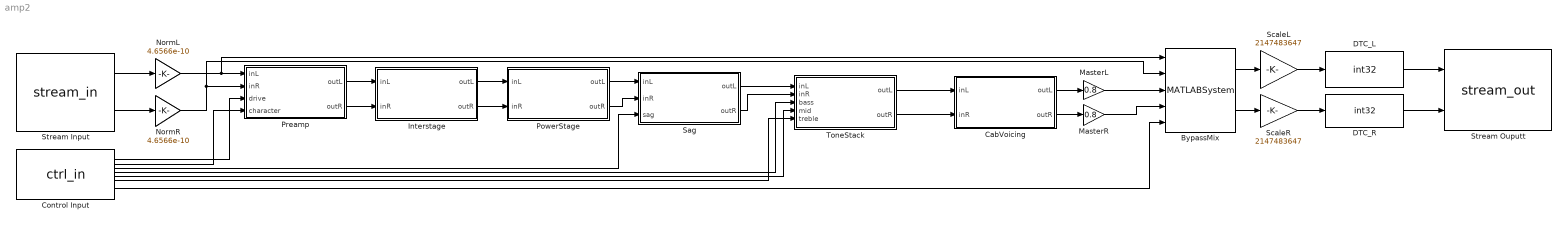
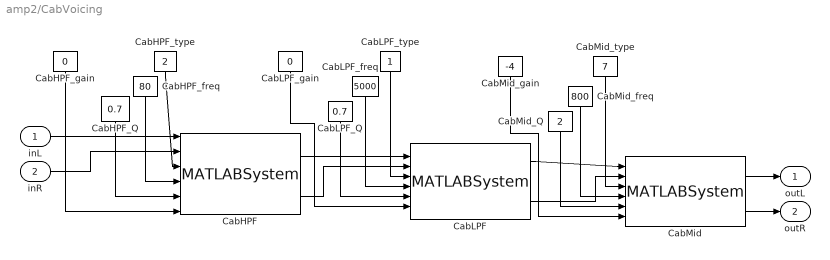
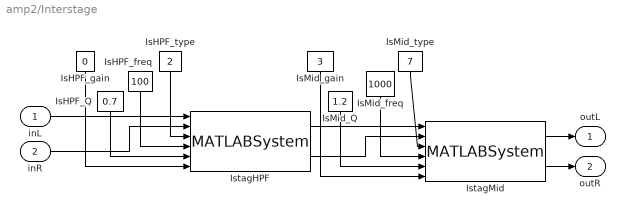
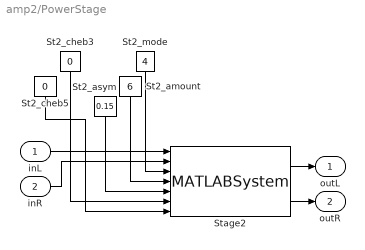
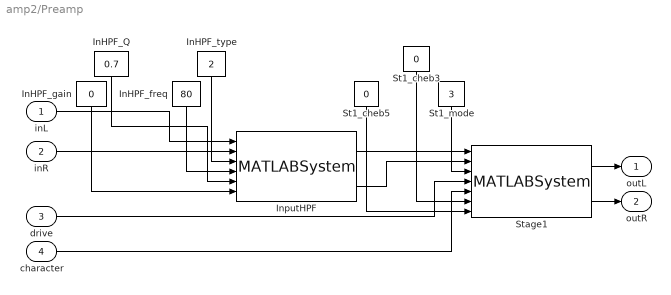
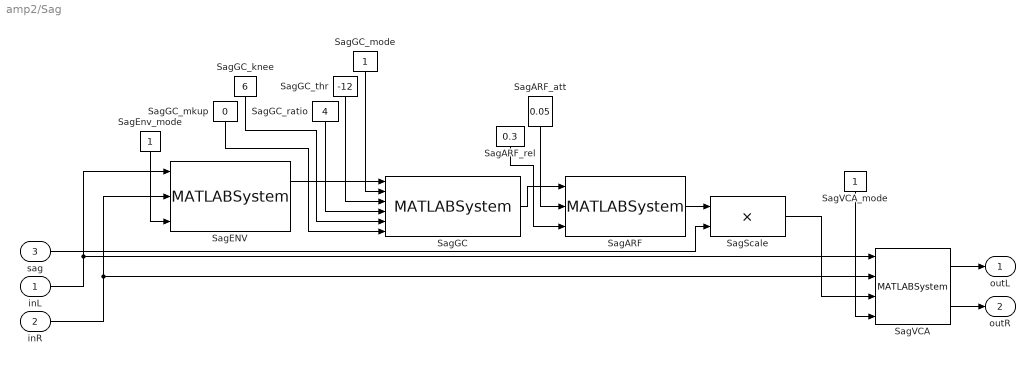
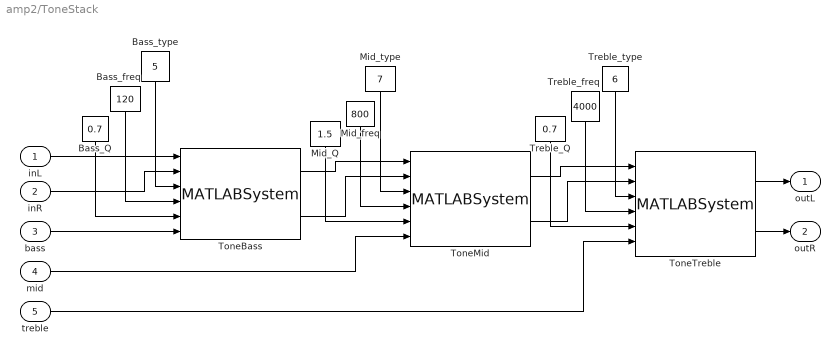
/*
 * Academic License - for use in teaching, academic research, and meeting
 * course requirements at degree granting institutions only.  Not for
 * government, commercial, or other organizational use.
 *
 * File: amp2.c
 *
 * Code generated for Simulink model 'amp2'.
 *
 * Model version                  : 1.15
 * Simulink Coder version         : 25.2 (R2025b) 28-Jul-2025
 * C/C++ source code generated on : Sat Apr 11 12:20:53 2026
 *
 * Target selection: ert.tlc
 * Embedded hardware selection: ARM Compatible->ARM Cortex-A
 * Code generation objectives: Unspecified
 * Validation result: Not run
 */

#include "amp2.h"
#include "rtwtypes.h"
#include "amp2_types.h"
#include "amp2_private.h"
#include "rt_nonfinite.h"
#include <string.h>
#include <math.h>

/* Block signals (default storage) */
B_amp2_T amp2_B;

/* Block states (default storage) */
DW_amp2_T amp2_DW;

/* Real-time model */
static RT_MODEL_amp2_T amp2_M_;
RT_MODEL_amp2_T *const amp2_M = &amp2_M_;

/* Forward declaration for local functions */
static void amp2_filter(real_T b[3], real_T a[3], const real_T x[128], const
  real_T zi[2], real_T y[128], real_T zf[2]);

/* Forward declaration for local functions */
static boolean_T amp2_isequal(const real_T varargin_1[257], const real_T
  varargin_2[257]);
static real_T amp2_lut_ws_sys_shapeOne(const lut_ws_sys_amp2_T *obj, real_T x,
  uint8_T md, real_T drive, real_T b, real_T cheb3, real_T cheb5, const real_T
  xGrid[257], const real_T yGrid[257]);
static void amp2_filter_o(const real_T b[15], const real_T x[256], const real_T
  zi[14], real_T y[256], real_T zf[14]);
static void amp2_filter_o0(const real_T b[15], const real_T x[512], const real_T
  zi[14], real_T y[512], real_T zf[14]);
static void amp_lut_ws_sys_processChannelOS(const lut_ws_sys_amp2_T *obj, const
  real_T x[128], uint8_T os, uint8_T md, real_T drive, real_T b, real_T cheb3,
  real_T cheb5, const real_T xGrid[257], const real_T yGrid[257], real_T zUp1[14],
  real_T zUp2[14], real_T zDn1[14], real_T zDn2[14], real_T y[128]);

/* Forward declaration for local functions */
static boolean_T amp2_isequal_n(const real_T varargin_1[257], const real_T
  varargin_2[257]);
real_T rt_roundd_snf(real_T u)
{
  real_T y;
  if (fabs(u) < 4.503599627370496E+15) {
    if (u >= 0.5) {
      y = floor(u + 0.5);
    } else if (u > -0.5) {
      y = u * 0.0;
    } else {
      y = ceil(u - 0.5);
    }
  } else {
    y = u;
  }

  return y;
}

static void amp2_filter(real_T b[3], real_T a[3], const real_T x[128], const
  real_T zi[2], real_T y[128], real_T zf[2])
{
  int32_T b_j;
  int32_T e_k;
  int32_T naxpy;

  /* Start for MATLABSystem: '<S1>/CabHPF' */
  if ((!rtIsInf(a[0])) && (!rtIsNaN(a[0])) && (!(a[0] == 0.0)) && (a[0] != 1.0))
  {
    b[0] /= a[0];
    b[1] /= a[0];
    b[2] /= a[0];
    a[1] /= a[0];
    a[2] /= a[0];
    a[0] = 1.0;
  }

  zf[0] = 0.0;
  y[0] = zi[0];
  zf[1] = 0.0;
  y[1] = zi[1];
  memset(&y[2], 0, 126U * sizeof(real_T));
  for (e_k = 0; e_k < 128; e_k++) {
    real_T as;
    int32_T y_tmp;

    /* Start for MATLABSystem: '<S1>/CabHPF' */
    if (128 - e_k <= 3) {
      naxpy = 128 - e_k;
    } else {
      naxpy = 3;
    }

    for (b_j = 0; b_j < naxpy; b_j++) {
      y_tmp = e_k + b_j;

      /* Start for MATLABSystem: '<S1>/CabHPF' */
      y[y_tmp] += x[e_k] * b[b_j];
    }

    /* Start for MATLABSystem: '<S1>/CabHPF' */
    if (127 - e_k <= 2) {
      naxpy = 127 - e_k;
    } else {
      naxpy = 2;
    }

    as = -y[e_k];
    for (b_j = 0; b_j < naxpy; b_j++) {
      y_tmp = (b_j + e_k) + 1;
      y[y_tmp] += a[b_j + 1] * as;
    }
  }

  for (e_k = 0; e_k < 2; e_k++) {
    for (naxpy = 0; naxpy <= e_k; naxpy++) {
      /* Start for MATLABSystem: '<S1>/CabHPF' */
      zf[naxpy] += b[(naxpy - e_k) + 2] * x[e_k + 126];
    }
  }

  for (e_k = 0; e_k < 2; e_k++) {
    for (naxpy = 0; naxpy <= e_k; naxpy++) {
      /* Start for MATLABSystem: '<S1>/CabHPF' */
      zf[naxpy] += a[(naxpy - e_k) + 2] * -y[e_k + 126];
    }
  }
}

real_T rt_powd_snf(real_T u0, real_T u1)
{
  real_T y;
  if (rtIsNaN(u0) || rtIsNaN(u1)) {
    y = (rtNaN);
  } else {
    real_T tmp;
    real_T tmp_0;
    tmp = fabs(u0);
    tmp_0 = fabs(u1);
    if (rtIsInf(u1)) {
      if (tmp == 1.0) {
        y = 1.0;
      } else if (tmp > 1.0) {
        if (u1 > 0.0) {
          y = (rtInf);
        } else {
          y = 0.0;
        }
      } else if (u1 > 0.0) {
        y = 0.0;
      } else {
        y = (rtInf);
      }
    } else if (tmp_0 == 0.0) {
      y = 1.0;
    } else if (tmp_0 == 1.0) {
      if (u1 > 0.0) {
        y = u0;
      } else {
        y = 1.0 / u0;
      }
    } else if (u1 == 2.0) {
      y = u0 * u0;
    } else if ((u1 == 0.5) && (u0 >= 0.0)) {
      y = sqrt(u0);
    } else if ((u0 < 0.0) && (u1 > floor(u1))) {
      y = (rtNaN);
    } else {
      y = pow(u0, u1);
    }
  }

  return y;
}

/* System initialize for atomic system: */
void amp2_CabHPF_Init(DW_CabHPF_amp2_T *localDW)
{
  /* Start for MATLABSystem: '<S1>/CabHPF' */
  localDW->objisempty = true;
  localDW->obj.isInitialized = 1;

  /*  arranca en bypass */
  localDW->obj.b[0] = 1.0;
  localDW->obj.a[0] = 1.0;
  localDW->obj.b[1] = 0.0;
  localDW->obj.a[1] = 0.0;
  localDW->obj.b[2] = 0.0;
  localDW->obj.a[2] = 0.0;

  /*  fuerza recálculo en el primer frame */
  localDW->obj.lastType = MAX_uint8_T;
  localDW->obj.lastFreq = (rtNaN);
  localDW->obj.lastQ = (rtNaN);
  localDW->obj.lastGain = (rtNaN);

  /* InitializeConditions for MATLABSystem: '<S1>/CabHPF' */
  localDW->obj.zL[0] = 0.0;
  localDW->obj.zR[0] = 0.0;
  localDW->obj.zL[1] = 0.0;
  localDW->obj.zR[1] = 0.0;
}

/* Output and update for atomic system: */
void amp2_CabHPF(const real_T rtu_0[128], const real_T rtu_1[128], real_T rtu_2,
                 real_T rtu_3, real_T rtu_4, real_T rtu_5, B_CabHPF_amp2_T
                 *localB, DW_CabHPF_amp2_T *localDW)
{
  real_T rtu_0_0[128];
  real_T tmp_0[3];
  real_T tmp_1[3];
  real_T b[2];
  real_T A;
  real_T G;
  real_T Q;
  real_T a0;
  real_T a0_tmp;
  real_T a0_tmp_0;
  real_T f;
  real_T p;
  real_T q;
  real_T sqrtA;
  real_T wc;
  int32_T t;
  uint8_T tmp;

  /* MATLABSystem: '<S1>/CabHPF' */
  G = rt_roundd_snf(rtu_2);
  if (G < 256.0) {
    if (G >= 0.0) {
      tmp = (uint8_T)G;
    } else {
      tmp = 0U;
    }
  } else {
    tmp = MAX_uint8_T;
  }

  /*  acepta double y castea */
  if ((tmp != localDW->obj.lastType) || (rtu_3 != localDW->obj.lastFreq) ||
      (rtu_4 != localDW->obj.lastQ) || (rtu_5 != localDW->obj.lastGain)) {
    f = rtu_3;
    Q = rtu_4;
    G = rtu_5;
    t = tmp;
    if (rtIsInf(rtu_3) || rtIsNaN(rtu_3)) {
      f = 1000.0;
    }

    if (rtIsInf(rtu_4) || rtIsNaN(rtu_4)) {
      Q = 0.707;
    }

    if (rtIsInf(rtu_5) || rtIsNaN(rtu_5)) {
      G = 0.0;
    }

    /*  límites prácticos */
    if (f < 0.1) {
      f = 0.1;
    }

    if (f > 23952.0) {
      f = 23952.0;
    }

    if (Q < 0.001) {
      Q = 0.001;
    }

    wc = f / 48000.0 * 6.2831853071795862;
    if (tmp < 1) {
      t = 1;
    } else if (tmp > 7) {
      t = 7;
    }

    localDW->obj.b[0] = 1.0;
    localDW->obj.a[0] = 1.0;
    localDW->obj.b[1] = 0.0;
    localDW->obj.a[1] = 0.0;
    localDW->obj.b[2] = 0.0;
    localDW->obj.a[2] = 0.0;
    switch ((uint8_T)t) {
     case 1U:
      /*  lowpass */
      /* Cálculo de los coefifientes de un Filtro Paso-Bajo de 2º orden */
      /* Parámetos de entrada:  */
      /* wo = frecuencia de corte a -3dB (en radianes) */
      /* Parametros de salida: */
      /* Coeficientes [b,a] de un filtro IIR de segundo orden */
      p = cos(wc);
      f = 1.4142135623730951 * sin(wc);

      /* Normalización de coeficientes */
      /* fvtool(b,a); */
      G = (1.0 - p) / (f + 2.0);
      localDW->obj.b[0] = G;
      localDW->obj.b[1] = (1.0 - p) * 2.0 / (f + 2.0);
      localDW->obj.b[2] = G;
      localDW->obj.a[0] = (f + 2.0) / (f + 2.0);
      localDW->obj.a[1] = -4.0 * p / (f + 2.0);
      localDW->obj.a[2] = (2.0 - f) / (f + 2.0);
      break;

     case 2U:
      /*  highpass */
      /* Cálculo de los coefifientes de un Filtro Paso-Alto de 2º orden */
      /* Parámetos de entrada:  */
      /* wo = frecuencia de corte a -3dB (en radianes) */
      /* Parametros de salida: */
      /* Coeficientes [b,a] de un filtro IIR de segundo orden */
      p = cos(wc);

      /*  Coeficientes del ecualizador */
      f = 1.4142135623730951 * sin(wc);

      /* Normalización de coeficientes */
      /*  */
      /* fvtool(b,a); */
      G = (p + 1.0) / (f + 2.0);
      localDW->obj.b[0] = G;
      localDW->obj.b[1] = (p + 1.0) * -2.0 / (f + 2.0);
      localDW->obj.b[2] = G;
      localDW->obj.a[0] = (f + 2.0) / (f + 2.0);
      localDW->obj.a[1] = -4.0 * p / (f + 2.0);
      localDW->obj.a[2] = (2.0 - f) / (f + 2.0);
      break;

     case 3U:
      /*  bandpass (0 dB peak) */
      /* Cálculo de los coefifientes de un Filtro Paso-Banda 2º orden */
      /* Parámetos de entrada:  */
      /* wo = frecuencia central (en radianes) */
      /* Q = factor de calidad */
      /*  */
      /* Parametros de salida: */
      /* Coeficientes [b,a] de un filtro IIR de segundo orden */
      f = sin(wc) / Q;

      /*  <-- Q aquí */
      /*  Coeficientes del ecualizador */
      /* Normalización de coeficientes */
      /* fvtool(b,a); */
      localDW->obj.b[0] = f / (f + 2.0);
      localDW->obj.b[1] = 0.0 / (f + 2.0);
      localDW->obj.b[2] = -f / (f + 2.0);
      localDW->obj.a[0] = (f + 2.0) / (f + 2.0);
      localDW->obj.a[1] = -4.0 * cos(wc) / (f + 2.0);
      localDW->obj.a[2] = (2.0 - f) / (f + 2.0);
      break;

     case 4U:
      /*  bandreject / notch */
      /* Cálculo de los coefifientes de un Filtro Paso-Banda 2º orden */
      /* Parámetos de entrada:  */
      /* wo = frecuencia central (en radianes) */
      /* Q = factor de calidad */
      /*  */
      /* Parametros de salida: */
      /* Coeficientes [b,a] de un filtro IIR de segundo orden */
      /*  Coeficientes del ecualizador */
      f = sin(wc) / Q;

      /* Normalización de coeficientes */
      /* fvtool(b,a); */
      G = 2.0 / (f + 2.0);
      localDW->obj.b[0] = G;
      wc = -4.0 * cos(wc) / (f + 2.0);
      localDW->obj.b[1] = wc;
      localDW->obj.b[2] = G;
      localDW->obj.a[0] = (f + 2.0) / (f + 2.0);
      localDW->obj.a[1] = wc;
      localDW->obj.a[2] = (2.0 - f) / (f + 2.0);
      break;

     case 5U:
      /*  lowshelf (RBJ, usando Q como S) */
      /* Cálculo de los coefifientes de un Filtro Paso-Banda 2º orden */
      /* Parámetos de entrada:  */
      /* wo = frecuencia central (en radianes) */
      /* Q = factor de calidad */
      /*  */
      /* Parametros de salida: */
      /* Coeficientes [b,a] de un filtro IIR de segundo orden */
      A = rt_powd_snf(10.0, G / 40.0);
      sqrtA = sqrt(A);
      p = cos(wc);
      q = sin(wc);

      /*  Coeficientes del ecualizador */
      f = 1.0 / A;
      a0_tmp = (1.0 - f) * p + (f + 1.0);
      a0_tmp_0 = 1.4142135623730951 * q / sqrtA;
      a0 = a0_tmp + a0_tmp_0;

      /* Normalización de coeficientes */
      /* fvtool(b,a); */
      G = (1.0 - A) * p + (A + 1.0);
      wc = 1.4142135623730951 * sqrtA * q;
      localDW->obj.b[0] = (G + wc) / a0;
      localDW->obj.b[1] = ((A + 1.0) * p + (1.0 - A)) * -2.0 / a0;
      localDW->obj.b[2] = (G - wc) / a0;
      localDW->obj.a[0] = a0 / a0;
      localDW->obj.a[1] = ((f + 1.0) * p + (1.0 - f)) * -2.0 / a0;
      localDW->obj.a[2] = (a0_tmp - a0_tmp_0) / a0;
      break;

     case 6U:
      /*  highshelf (RBJ, usando Q como S) */
      /* Cálculo de los coefifientes de un Filtro Paso-Banda 2º orden */
      /* Parámetos de entrada:  */
      /* wo = frecuencia central (en radianes) */
      /* Q = factor de calidad */
      /*  */
      /* Parametros de salida: */
      /* Coeficientes [b,a] de un filtro IIR de segundo orden */
      A = rt_powd_snf(10.0, G / 40.0);
      sqrtA = sqrt(A);
      p = cos(wc);
      q = sin(wc);

      /*  Coeficientes del ecualizador */
      f = (1.0 - A) * p + (A + 1.0);
      a0_tmp = 1.4142135623730951 * sqrtA * q;
      a0 = f + a0_tmp;
      a0_tmp_0 = A * A;

      /* Normalización de coeficientes */
      /* fvtool(b,a); */
      G = 1.0 / A;
      wc = (1.0 - G) * p + (G + 1.0);
      sqrtA = 1.4142135623730951 * q / sqrtA;
      localDW->obj.b[0] = (wc + sqrtA) * a0_tmp_0 / a0;
      localDW->obj.b[1] = ((G + 1.0) * p + (1.0 - G)) * -2.0 * a0_tmp_0 / a0;
      localDW->obj.b[2] = (wc - sqrtA) * a0_tmp_0 / a0;
      localDW->obj.a[0] = a0 / a0;
      localDW->obj.a[1] = ((A + 1.0) * p + (1.0 - A)) * -2.0 / a0;
      localDW->obj.a[2] = (f - a0_tmp) / a0;
      break;

     case 7U:
      /*  peaking / centershelf */
      /* Cálculo de los coefifientes de un Filtro Paso-Banda 2º orden */
      /* Parámetos de entrada:  */
      /* wo = frecuencia central (en radianes) */
      /* Q = factor de calidad */
      /*  */
      /* Parametros de salida: */
      /* Coeficientes [b,a] de un filtro IIR de segundo orden */
      A = rt_powd_snf(10.0, G / 40.0);
      G = sin(wc) / (2.0 * Q);

      /*  Coeficientes del ecualizador */
      f = G / A;

      /* Normalización de coeficientes */
      /* fvtool(b,a); */
      G *= A;
      localDW->obj.b[0] = (G + 1.0) / (f + 1.0);
      wc = -2.0 * cos(wc) / (f + 1.0);
      localDW->obj.b[1] = wc;
      localDW->obj.b[2] = (1.0 - G) / (f + 1.0);
      localDW->obj.a[0] = (f + 1.0) / (f + 1.0);
      localDW->obj.a[1] = wc;
      localDW->obj.a[2] = (1.0 - f) / (f + 1.0);
      break;
    }

    localDW->obj.lastType = tmp;
    localDW->obj.lastFreq = rtu_3;
    localDW->obj.lastQ = Q;
    localDW->obj.lastGain = rtu_5;
  }

  /*  bp es logical */
  for (t = 0; t < 3; t++) {
    tmp_0[t] = localDW->obj.b[t];
  }

  for (t = 0; t < 3; t++) {
    tmp_1[t] = localDW->obj.a[t];
  }

  /* Start for MATLABSystem: '<S1>/CabHPF' */
  memcpy(&rtu_0_0[0], &rtu_0[0], sizeof(real_T) << 7);

  /* MATLABSystem: '<S1>/CabHPF' */
  amp2_filter(tmp_0, tmp_1, rtu_0_0, localDW->obj.zL, localB->CabHPF_o1, b);
  localDW->obj.zL[0] = b[0];
  localDW->obj.zL[1] = b[1];
  for (t = 0; t < 3; t++) {
    tmp_0[t] = localDW->obj.b[t];
  }

  for (t = 0; t < 3; t++) {
    tmp_1[t] = localDW->obj.a[t];
  }

  /* Start for MATLABSystem: '<S1>/CabHPF' */
  memcpy(&rtu_0_0[0], &rtu_1[0], sizeof(real_T) << 7);

  /* MATLABSystem: '<S1>/CabHPF' */
  amp2_filter(tmp_0, tmp_1, rtu_0_0, localDW->obj.zR, localB->CabHPF_o2, b);
  localDW->obj.zR[0] = b[0];
  localDW->zL[0] = localDW->obj.zL[0];
  localDW->zR[0] = b[0];
  localDW->obj.zR[1] = b[1];
  localDW->zL[1] = localDW->obj.zL[1];
  localDW->zR[1] = b[1];
}

/* Termination for atomic system: */
void amp2_CabHPF_Term(DW_CabHPF_amp2_T *localDW)
{
  /* Terminate for MATLABSystem: '<S1>/CabHPF' */
  localDW->zL[0] = localDW->obj.zL[0];
  localDW->zR[0] = localDW->obj.zR[0];
  localDW->zL[1] = localDW->obj.zL[1];
  localDW->zR[1] = localDW->obj.zR[1];
}

static boolean_T amp2_isequal(const real_T varargin_1[257], const real_T
  varargin_2[257])
{
  int32_T b_k;
  boolean_T exitg1;
  boolean_T p;
  boolean_T p_0;
  p = false;

  /* Start for MATLABSystem: '<S3>/Stage2' */
  p_0 = true;
  b_k = 0;
  exitg1 = false;
  while ((!exitg1) && (b_k < 257)) {
    if (!(varargin_1[b_k] == varargin_2[b_k])) {
      p_0 = false;
      exitg1 = true;
    } else {
      b_k++;
    }
  }

  if (p_0) {
    p = true;
  }

  return p;
}

static real_T amp2_lut_ws_sys_shapeOne(const lut_ws_sys_amp2_T *obj, real_T x,
  uint8_T md, real_T drive, real_T b, real_T cheb3, real_T cheb5, const real_T
  xGrid[257], const real_T yGrid[257])
{
  real_T y;

  /*  SHAPER (una muestra) */
  /*  pre: drive + bias */
  y = drive * x + b;

  /* Start for MATLABSystem: '<S3>/Stage2' */
  if (rtIsInf(y) || rtIsNaN(y)) {
    y = 0.0;
  }

  /*  limitar a rango razonable antes de funciones no lineales */
  /* u = clamp(obj, u, -1.0, 1.0); */
  if (md == 1) {
    /*  ---- Hard clip simétrico ---- */
    if (y < -1.0) {
      y = -1.0;
    } else if (y > 1.0) {
      y = 1.0;
    }
  } else if (md == 2) {
    /*  ---- Soft clip polinómico (tipo 3er orden, continuo) ---- */
    if (y < -2.0) {
      y = -2.0;
    } else if (y > 2.0) {
      y = 2.0;
    }

    /*  y = u - u^3/3 para |u|<=1  (suave, sin discontinuidad) */
    /*  (si quieres más agresivo, usa otro polinomio) */
    y -= y * y * y / 3.0;
  } else if (md == 3) {
    /*  ---- Tanh (soft saturación) ---- */
    /*  Normalizamos ligeramente para que tanh(1) no sea demasiado bajo */
    y = tanh(2.0 * y) / 0.9640275800758169;
  } else if (md == 4) {
    /*  ---- Asym clip (bias ya aplicado) + hard clip ---- */
    /*  Asimetría sale de b; aquí solo clippeamos. */
    /* y = clamp(obj, u, -1.0, 1.0); */
    /*  recorta antes en negativo */
    if (y < -0.6) {
      y = -0.6;
    } else if (y > 1.0) {
      y = 1.0;
    }

    /*  renormaliza */
  } else if (md == 5) {
    real_T den;
    real_T u2;

    /*  ---- Chebyshev controlado (T1 + a3*T3 + a5*T5) ---- */
    /*  Para x en [-1,1]: */
    /*  T1=u */
    /*  T3=4u^3-3u */
    /*  T5=16u^5-20u^3+5u */
    if (y < -1.0) {
      y = -1.0;
    } else if (y > 1.0) {
      y = 1.0;
    }

    u2 = y * y;
    den = u2 * y;
    y = ((den * u2 * 16.0 - 20.0 * den) + 5.0 * y) * cheb5 + ((4.0 * den - 3.0 *
      y) * cheb3 + y);

    /*  re-limit (Chebyshev puede exceder) */
    if (y < -1.0) {
      y = -1.0;
    } else if (y > 1.0) {
      y = 1.0;
    }

    /*  ---- User LUT: y = interp(u; XUser,YUser) ---- */
    /*  Interpolación lineal LUT (saturación) */
  } else if (y <= xGrid[0]) {
    y = yGrid[0];
  } else if (y >= xGrid[256]) {
    y = yGrid[256];
  } else {
    real_T den;
    real_T u2;
    int32_T b_i;
    int32_T k;
    boolean_T exitg1;
    k = 1;
    b_i = 0;
    exitg1 = false;
    while ((!exitg1) && (b_i < 256)) {
      if (y < xGrid[b_i + 1]) {
        k = b_i + 1;
        exitg1 = true;
      } else {
        b_i++;
      }
    }

    u2 = xGrid[k - 1];
    den = xGrid[k] - u2;
    if ((den <= obj->Eps) || (rtIsInf(den) || rtIsNaN(den))) {
      y = yGrid[k - 1];
    } else {
      real_T y_tmp;
      y_tmp = yGrid[k - 1];
      y = (y - u2) / den * (yGrid[k] - y_tmp) + y_tmp;
    }
  }

  /*  post: opcionalmente quitar bias DC introducido (simple, estático) */
  /*  En audio real, quitar DC es mejor con HPF muy suave; aquí hacemos corrección estática: */
  /* y = y - b; */
  if (rtIsInf(y) || rtIsNaN(y)) {
    y = 0.0;
  }

  /*  limitar salida final */
  if (y < -1.0) {
    y = -1.0;
  } else if (y > 1.0) {
    y = 1.0;
  }

  /* End of Start for MATLABSystem: '<S3>/Stage2' */
  return y;
}

static void amp2_filter_o(const real_T b[15], const real_T x[256], const real_T
  zi[14], real_T y[256], real_T zf[14])
{
  int32_T b_j;
  int32_T b_k;
  for (b_k = 0; b_k < 14; b_k++) {
    zf[b_k] = 0.0;
    y[b_k] = zi[b_k];
  }

  memset(&y[14], 0, 242U * sizeof(real_T));
  for (b_k = 0; b_k < 15; b_k++) {
    for (b_j = b_k + 1; b_j < 257; b_j++) {
      y[b_j - 1] += x[(b_j - b_k) - 1] * b[b_k];
    }
  }

  for (b_k = 0; b_k < 14; b_k++) {
    for (b_j = 0; b_j <= b_k; b_j++) {
      /* Start for MATLABSystem: '<S3>/Stage2' */
      zf[b_j] += b[(b_j - b_k) + 14] * x[b_k + 242];
    }
  }
}

static void amp2_filter_o0(const real_T b[15], const real_T x[512], const real_T
  zi[14], real_T y[512], real_T zf[14])
{
  int32_T b_j;
  int32_T b_k;
  for (b_k = 0; b_k < 14; b_k++) {
    zf[b_k] = 0.0;
    y[b_k] = zi[b_k];
  }

  memset(&y[14], 0, 498U * sizeof(real_T));
  for (b_k = 0; b_k < 15; b_k++) {
    for (b_j = b_k + 1; b_j < 513; b_j++) {
      y[b_j - 1] += x[(b_j - b_k) - 1] * b[b_k];
    }
  }

  for (b_k = 0; b_k < 14; b_k++) {
    for (b_j = 0; b_j <= b_k; b_j++) {
      /* Start for MATLABSystem: '<S3>/Stage2' */
      zf[b_j] += b[(b_j - b_k) + 14] * x[b_k + 498];
    }
  }
}

static void amp_lut_ws_sys_processChannelOS(const lut_ws_sys_amp2_T *obj, const
  real_T x[128], uint8_T os, uint8_T md, real_T drive, real_T b, real_T cheb3,
  real_T cheb5, const real_T xGrid[257], const real_T yGrid[257], real_T zUp1[14],
  real_T zUp2[14], real_T zDn1[14], real_T zDn2[14], real_T y[128])
{
  real_T b_y2_0[512];
  real_T u_0[512];
  real_T y4[512];
  real_T b_y2[256];
  real_T u[256];
  real_T y2[256];
  int32_T i;
  static const real_T tmp[15] = { -0.000106360599, 0.0, 0.00695210045, 0.0,
    -0.0516884606, 0.0, 0.294825487, 0.500034468, 0.294825487, 0.0,
    -0.0516884606, 0.0, 0.00695210045, 0.0, -0.000106360599 };

  real_T zUp1_0[14];

  /* Start for MATLABSystem: '<S3>/Stage2' */
  if (os == 0) {
    for (i = 0; i < 128; i++) {
      y[i] = amp2_lut_ws_sys_shapeOne(obj, x[i], md, drive, b, cheb3, cheb5,
        xGrid, yGrid);
    }
  } else if (os == 1) {
    memset(&u[0], 0, sizeof(real_T) << 8U);
    for (i = 0; i < 128; i++) {
      u[i << 1] = x[i];
    }

    memcpy(&zUp1_0[0], &zUp1[0], 14U * sizeof(real_T));
    amp2_filter_o(tmp, u, zUp1_0, b_y2, zUp1);

    /*  2N */
    for (i = 0; i < 256; i++) {
      y2[i] = amp2_lut_ws_sys_shapeOne(obj, b_y2[i], md, drive, b, cheb3, cheb5,
        xGrid, yGrid);
    }

    memcpy(&zUp1_0[0], &zDn1[0], 14U * sizeof(real_T));
    amp2_filter_o(tmp, y2, zUp1_0, u, zDn1);
    for (i = 0; i < 128; i++) {
      y[i] = u[i << 1];
    }

    /*  N */
  } else {
    memset(&u[0], 0, sizeof(real_T) << 8U);
    for (i = 0; i < 128; i++) {
      u[i << 1] = x[i];
    }

    memcpy(&zUp1_0[0], &zUp1[0], 14U * sizeof(real_T));
    amp2_filter_o(tmp, u, zUp1_0, b_y2, zUp1);

    /*  2N */
    memset(&u_0[0], 0, sizeof(real_T) << 9U);
    for (i = 0; i < 256; i++) {
      u_0[i << 1] = b_y2[i];
    }

    memcpy(&zUp1_0[0], &zUp2[0], 14U * sizeof(real_T));
    amp2_filter_o0(tmp, u_0, zUp1_0, b_y2_0, zUp2);

    /*  4N */
    for (i = 0; i < 512; i++) {
      y4[i] = amp2_lut_ws_sys_shapeOne(obj, b_y2_0[i], md, drive, b, cheb3,
        cheb5, xGrid, yGrid);
    }

    memcpy(&zUp1_0[0], &zDn2[0], 14U * sizeof(real_T));
    amp2_filter_o0(tmp, y4, zUp1_0, u_0, zDn2);

    /*  2N */
    for (i = 0; i < 256; i++) {
      b_y2[i] = u_0[i << 1];
    }

    memcpy(&zUp1_0[0], &zDn1[0], 14U * sizeof(real_T));
    amp2_filter_o(tmp, b_y2, zUp1_0, u, zDn1);
    for (i = 0; i < 128; i++) {
      y[i] = u[i << 1];
    }

    /*  N */
  }

  /* End of Start for MATLABSystem: '<S3>/Stage2' */
}

/* System initialize for atomic system: */
void amp2_Stage2_Init(DW_Stage2_amp2_T *localDW)
{
  /* Start for MATLABSystem: '<S3>/Stage2' */
  localDW->objisempty = true;
  localDW->obj.ModeDefault = 3U;
  localDW->obj.AmountDefault = 12.0;
  localDW->obj.AsymDefault = 0.0;
  localDW->obj.Cheb3Default = 1.0;
  localDW->obj.Cheb5Default = 0.0;
  memcpy(&localDW->obj.XUser[0], &amp2_ConstP.pooled5[0], 257U * sizeof(real_T));
  memcpy(&localDW->obj.YUser[0], &amp2_ConstP.pooled5[0], 257U * sizeof(real_T));
  localDW->obj.MUser = 257.0;
  localDW->obj.Eps = 1.0E-12;
  localDW->obj.isInitialized = 1;

  /* InitializeConditions for MATLABSystem: '<S3>/Stage2' */
  /*  Validaciones */
  memset(&localDW->obj.zUp1L[0], 0, 14U * sizeof(real_T));
  memset(&localDW->obj.zUp1R[0], 0, 14U * sizeof(real_T));
  memset(&localDW->obj.zDn1L[0], 0, 14U * sizeof(real_T));
  memset(&localDW->obj.zDn1R[0], 0, 14U * sizeof(real_T));
  memset(&localDW->obj.zUp2L[0], 0, 14U * sizeof(real_T));
  memset(&localDW->obj.zUp2R[0], 0, 14U * sizeof(real_T));
  memset(&localDW->obj.zDn2L[0], 0, 14U * sizeof(real_T));
  memset(&localDW->obj.zDn2R[0], 0, 14U * sizeof(real_T));
}

/* Output and update for atomic system: */
void amp2_Stage2(const real_T rtu_0[128], const real_T rtu_1[128], real_T rtu_2,
                 real_T rtu_3, real_T rtu_4, real_T rtu_5, real_T rtu_6,
                 B_Stage2_amp2_T *localB, DW_Stage2_amp2_T *localDW)
{
  real_T xGrid[257];
  real_T yGrid[257];
  real_T c[14];
  real_T d[14];
  real_T e[14];
  real_T f[14];
  real_T b;
  real_T drive;
  real_T obj_zDn1R;
  real_T obj_zDn2R;
  int32_T i;
  int32_T tmp;

  /* MATLABSystem: '<S3>/Stage2' */
  if (localDW->obj.ModeDefault != 3) {
    localDW->obj.ModeDefault = 3U;
  }

  if (localDW->obj.AmountDefault != 12.0) {
    localDW->obj.AmountDefault = 12.0;
  }

  if (localDW->obj.AsymDefault != 0.0) {
    localDW->obj.AsymDefault = 0.0;
  }

  if (localDW->obj.Cheb3Default != 1.0) {
    localDW->obj.Cheb3Default = 1.0;
  }

  if (localDW->obj.Cheb5Default != 0.0) {
    localDW->obj.Cheb5Default = 0.0;
  }

  if (!amp2_isequal(localDW->obj.XUser, amp2_ConstP.pooled5)) {
    memcpy(&localDW->obj.XUser[0], &amp2_ConstP.pooled5[0], 257U * sizeof(real_T));
  }

  if (!amp2_isequal(localDW->obj.YUser, amp2_ConstP.pooled5)) {
    memcpy(&localDW->obj.YUser[0], &amp2_ConstP.pooled5[0], 257U * sizeof(real_T));
  }

  if (localDW->obj.MUser != 257.0) {
    localDW->obj.MUser = 257.0;
  }

  if (localDW->obj.Eps != 1.0E-12) {
    localDW->obj.Eps = 1.0E-12;
  }

  /*  inL,inR,mode,amount,asym,cheb3,cheb5 */
  /*  Nloc = size(inL,1); */
  /*  outL = zeros(Nloc,1); */
  /*  outR = zeros(Nloc,1); */
  /*  bp es logical */
  /*  --- defaults --- */
  tmp = (int32_T)fmin(fmax(rt_roundd_snf(rtu_2), 1.0), 6.0);

  /*  por ejemplo */
  if (rtu_4 < -0.5) {
    b = -0.5;
  } else if (rtu_4 > 0.5) {
    b = 0.5;
  } else {
    b = rtu_4;
  }

  /*  drive interno (lineal) */
  if (rtu_3 < 0.0) {
    drive = 0.0;
  } else if (rtu_3 > 60.0) {
    drive = 60.0;
  } else {
    drive = rtu_3;
  }

  drive = rt_powd_snf(10.0, drive / 20.0);

  /*  preparar LUT usuario (si aplica) */
  /*  (tamaño fijo M, relleno seguro) */
  memset(&xGrid[0], 0, 257U * sizeof(real_T));
  memset(&yGrid[0], 0, 257U * sizeof(real_T));
  if (tmp == 6) {
    memcpy(&xGrid[0], &localDW->obj.XUser[0], 257U * sizeof(real_T));
    memcpy(&yGrid[0], &localDW->obj.YUser[0], 257U * sizeof(real_T));
  }

  /* Start for MATLABSystem: '<S3>/Stage2' */
  memcpy(&c[0], &localDW->obj.zUp1L[0], 14U * sizeof(real_T));
  memcpy(&d[0], &localDW->obj.zUp2L[0], 14U * sizeof(real_T));
  memcpy(&e[0], &localDW->obj.zDn1L[0], 14U * sizeof(real_T));
  memcpy(&f[0], &localDW->obj.zDn2L[0], 14U * sizeof(real_T));
  amp_lut_ws_sys_processChannelOS(&localDW->obj, rtu_0, 0, (uint8_T)tmp, drive,
    b, rtu_5, rtu_6, xGrid, yGrid, c, d, e, f, localB->Stage2_o1);
  for (i = 0; i < 14; i++) {
    /* MATLABSystem: '<S3>/Stage2' */
    localDW->obj.zUp1L[i] = c[i];
    localDW->obj.zUp2L[i] = d[i];
    localDW->obj.zDn1L[i] = e[i];
    localDW->obj.zDn2L[i] = f[i];

    /* Start for MATLABSystem: '<S3>/Stage2' */
    c[i] = localDW->obj.zUp1R[i];
    d[i] = localDW->obj.zUp2R[i];
    e[i] = localDW->obj.zDn1R[i];
    f[i] = localDW->obj.zDn2R[i];
  }

  /* Start for MATLABSystem: '<S3>/Stage2' */
  amp_lut_ws_sys_processChannelOS(&localDW->obj, rtu_1, 0, (uint8_T)tmp, drive,
    b, rtu_5, rtu_6, xGrid, yGrid, c, d, e, f, localB->Stage2_o2);

  /* MATLABSystem: '<S3>/Stage2' */
  for (i = 0; i < 14; i++) {
    b = c[i];
    localDW->obj.zUp1R[i] = b;
    drive = d[i];
    localDW->obj.zUp2R[i] = drive;
    obj_zDn1R = e[i];
    localDW->obj.zDn1R[i] = obj_zDn1R;
    obj_zDn2R = f[i];
    localDW->obj.zDn2R[i] = obj_zDn2R;
    localDW->zDn2R[i] = obj_zDn2R;
    localDW->zUp1L[i] = localDW->obj.zUp1L[i];
    localDW->zUp2R[i] = drive;
    localDW->zDn1R[i] = obj_zDn1R;
    localDW->zUp1R[i] = b;
    localDW->zDn1L[i] = localDW->obj.zDn1L[i];
    localDW->zDn2L[i] = localDW->obj.zDn2L[i];
    localDW->zUp2L[i] = localDW->obj.zUp2L[i];
  }
}

/* Termination for atomic system: */
void amp2_Stage2_Term(DW_Stage2_amp2_T *localDW)
{
  /* Terminate for MATLABSystem: '<S3>/Stage2' */
  memcpy(&localDW->zDn2R[0], &localDW->obj.zDn2R[0], 14U * sizeof(real_T));
  memcpy(&localDW->zUp1L[0], &localDW->obj.zUp1L[0], 14U * sizeof(real_T));
  memcpy(&localDW->zUp2R[0], &localDW->obj.zUp2R[0], 14U * sizeof(real_T));
  memcpy(&localDW->zDn1R[0], &localDW->obj.zDn1R[0], 14U * sizeof(real_T));
  memcpy(&localDW->zUp1R[0], &localDW->obj.zUp1R[0], 14U * sizeof(real_T));
  memcpy(&localDW->zDn1L[0], &localDW->obj.zDn1L[0], 14U * sizeof(real_T));
  memcpy(&localDW->zDn2L[0], &localDW->obj.zDn2L[0], 14U * sizeof(real_T));
  memcpy(&localDW->zUp2L[0], &localDW->obj.zUp2L[0], 14U * sizeof(real_T));
}

static boolean_T amp2_isequal_n(const real_T varargin_1[257], const real_T
  varargin_2[257])
{
  int32_T b_k;
  boolean_T exitg1;
  boolean_T p;
  boolean_T p_0;
  p = false;

  /* Start for MATLABSystem: '<S5>/SagGC' */
  p_0 = true;
  b_k = 0;
  exitg1 = false;
  while ((!exitg1) && (b_k < 257)) {
    if (!(varargin_1[b_k] == varargin_2[b_k])) {
      p_0 = false;
      exitg1 = true;
    } else {
      b_k++;
    }
  }

  if (p_0) {
    p = true;
  }

  return p;
}

/* Model step function */
void amp2_step(void)
{
  real_T xGrid[257];
  real_T yGrid[257];
  real_T in[128];
  real_T rtb_NormL[128];
  real_T rtb_NormR[128];
  real_T rtb_SagVCA_o1[128];
  real_T a_;
  real_T den;
  real_T g;
  real_T gd1_;
  real_T gd2_;
  real_T gw1_;
  real_T gw2_;
  int32_T b_i;
  int32_T i;
  int32_T k;
  boolean_T exitg1;

  /* S-Function (ctrl_in): '<Root>/Control Input' */

  /* Level2 S-Function Block: '<Root>/Control Input' (ctrl_in) */
  {
    SimStruct *rts = amp2_M->childSfunctions[0];
    sfcnOutputs(rts,0);
  }

  /* S-Function (stream_in): '<Root>/Stream Input' */

  /* Level2 S-Function Block: '<Root>/Stream Input' (stream_in) */
  {
    SimStruct *rts = amp2_M->childSfunctions[1];
    sfcnOutputs(rts,0);
  }

  for (i = 0; i < 128; i++) {
    /* Gain: '<Root>/NormL' */
    rtb_NormL[i] = 4.6565999992607965E-10 * (real_T)amp2_B.StreamInput_o1[i];

    /* Gain: '<Root>/NormR' */
    rtb_NormR[i] = 4.6565999992607965E-10 * (real_T)amp2_B.StreamInput_o2[i];
  }

  /* Constant: '<S4>/InHPF_type' incorporates:
   *  Constant: '<S4>/InHPF_Q'
   *  Constant: '<S4>/InHPF_freq'
   *  Constant: '<S4>/InHPF_gain'
   */
  amp2_CabHPF(rtb_NormL, rtb_NormR, 2.0, 80.0, 0.7, 0.0, &amp2_B.InputHPF,
              &amp2_DW.InputHPF);

  /* Constant: '<S4>/St1_mode' incorporates:
   *  Constant: '<S4>/St1_cheb3'
   *  Constant: '<S4>/St1_cheb5'
   */
  amp2_Stage2(amp2_B.InputHPF.CabHPF_o1, amp2_B.InputHPF.CabHPF_o2, 3.0,
              amp2_B.ControlInput_o1, amp2_B.ControlInput_o2, 0.0, 0.0,
              &amp2_B.Stage1, &amp2_DW.Stage1);

  /* Constant: '<S2>/IsHPF_type' incorporates:
   *  Constant: '<S2>/IsHPF_Q'
   *  Constant: '<S2>/IsHPF_freq'
   *  Constant: '<S2>/IsHPF_gain'
   */
  amp2_CabHPF(amp2_B.Stage1.Stage2_o1, amp2_B.Stage1.Stage2_o2, 2.0, 100.0, 0.7,
              0.0, &amp2_B.IstagHPF, &amp2_DW.IstagHPF);

  /* Constant: '<S2>/IsMid_type' incorporates:
   *  Constant: '<S2>/IsMid_Q'
   *  Constant: '<S2>/IsMid_freq'
   *  Constant: '<S2>/IsMid_gain'
   */
  amp2_CabHPF(amp2_B.IstagHPF.CabHPF_o1, amp2_B.IstagHPF.CabHPF_o2, 7.0, 1000.0,
              1.2, 3.0, &amp2_B.IstagMid, &amp2_DW.IstagMid);

  /* Constant: '<S3>/St2_mode' incorporates:
   *  Constant: '<S3>/St2_amount'
   *  Constant: '<S3>/St2_asym'
   *  Constant: '<S3>/St2_cheb3'
   *  Constant: '<S3>/St2_cheb5'
   */
  amp2_Stage2(amp2_B.IstagMid.CabHPF_o1, amp2_B.IstagMid.CabHPF_o2, 4.0, 6.0,
              0.15, 0.0, 0.0, &amp2_B.Stage2, &amp2_DW.Stage2);

  /* MATLABSystem: '<S5>/SagENV' incorporates:
   *  MATLABSystem: '<S3>/Stage2'
   */
  if (amp2_DW.obj_c.ModeDefault != 1) {
    amp2_DW.obj_c.ModeDefault = 1U;
  }

  if (amp2_DW.obj_c.Eps != 1.0E-12) {
    amp2_DW.obj_c.Eps = 1.0E-12;
  }

  if (amp2_DW.obj_c.TauRMS != 0.02) {
    amp2_DW.obj_c.TauRMS = 0.02;
  }

  /*  Estéreo enlazado por máximo */
  /*  -------- PEAK (instantáneo) -------- */
  for (i = 0; i < 128; i++) {
    rtb_SagVCA_o1[i] = log10(fmax(fabs(amp2_B.Stage2.Stage2_o1[i]), fabs
      (amp2_B.Stage2.Stage2_o2[i])) + 1.0E-12) * 20.0;
  }

  /* MATLABSystem: '<S5>/SagGC' incorporates:
   *  Constant: '<S5>/SagGC_thr'
   */
  if (amp2_DW.obj.Xmin != -80.0) {
    amp2_DW.obj.Xmin = -80.0;
  }

  if (amp2_DW.obj.Xmax != 10.0) {
    amp2_DW.obj.Xmax = 10.0;
  }

  if (amp2_DW.obj.Floor_dB != -80.0) {
    amp2_DW.obj.Floor_dB = -80.0;
  }

  if (!amp2_isequal_n(amp2_DW.obj.XUser, amp2_ConstP.SagGC_XUser)) {
    memcpy(&amp2_DW.obj.XUser[0], &amp2_ConstP.SagGC_XUser[0], 257U * sizeof
           (real_T));
  }

  if (!amp2_isequal_n(amp2_DW.obj.YUser, amp2_ConstP.SagGC_YUser)) {
    memset(&amp2_DW.obj.YUser[0], 0, 257U * sizeof(real_T));
  }

  if (amp2_DW.obj.MUser != 257.0) {
    amp2_DW.obj.MUser = 257.0;
  }

  /*  --- parámetros --- */
  /*  --- construir LUT (xGrid, yGrid) --- */
  /*  xGrid: [1 x M] */
  xGrid[256] = 10.0;
  xGrid[0] = -80.0;
  for (i = 0; i < 255; i++) {
    xGrid[i + 1] = ((real_T)i + 1.0) * 0.3515625 - 80.0;
  }

  /*  ===== MODO 1: Compresor descendente (hard knee) ===== */
  /*  Lout = x si x<=T ; Lout = T + (x-T)/R si x>T */
  for (i = 0; i < 257; i++) {
    den = xGrid[i];
    if (den <= -12.0) {
      g = den;
    } else {
      g = (den - -12.0) / 4.0 - 12.0;
    }

    yGrid[i] = g - den;

    /*  GdB0 */
  }

  /* MATLABSystem: '<S5>/SagARF' */
  /*  --- aplicar LUT por interpolación lineal a Lin_dB --- */
  /*  bypass del suavizado */
  /*  tiempos válidos */
  g = amp2_DW.obj_m.gPrev_dB;

  /*  g es Nx1 */
  /*  dB -> lineal, elemento a elemento */
  /*  bp es logical */
  /*  elemento a elemento */
  for (i = 0; i < 128; i++) {
    /* MATLABSystem: '<S5>/SagENV' incorporates:
     *  MATLABSystem: '<S5>/SagGC'
     * */
    /*  ---------- Interpolación lineal con saturación ---------- */
    /*  Saturación fuera de rango */
    den = rtb_SagVCA_o1[i];

    /* MATLABSystem: '<S5>/SagGC' incorporates:
     *  MATLABSystem: '<S5>/SagENV'
     */
    if (den <= xGrid[0]) {
      den = yGrid[0];
    } else if (den >= xGrid[256]) {
      den = yGrid[256];
    } else {
      /*  Búsqueda lineal (M pequeño; codegen-friendly) */
      k = 0;
      b_i = 0;
      exitg1 = false;
      while ((!exitg1) && (b_i < 256)) {
        if (rtb_SagVCA_o1[i] < xGrid[b_i + 1]) {
          k = b_i;
          exitg1 = true;
        } else {
          b_i++;
        }
      }

      /*  Evitar división por cero si la LUT de usuario  */
      /*  no es estrictamente creciente */
      den = xGrid[k + 1] - xGrid[k];
      if (den <= 0.0) {
        den = yGrid[k];
      } else {
        den = (yGrid[k + 1] - yGrid[k]) * ((rtb_SagVCA_o1[i] - xGrid[k]) / den)
          + yGrid[k];
      }
    }

    /* MATLABSystem: '<S5>/SagARF' incorporates:
     *  MATLABSystem: '<S5>/SagGC'
     */
    /*  ganancia en dB */
    /*  + makeup */
    if (den < g) {
      /*  más reducción de ganancia -> attack */
      g = 0.99958342012683377 * g + 0.000416579873166234 * den;
    } else {
      /*  menos reducción de ganancia -> release */
      g = 0.99993055796676522 * g + 6.9442033234778933E-5 * den;
    }

    /* MATLABSystem: '<S5>/SagVCA' incorporates:
     *  MATLABSystem: '<S3>/Stage2'
     *  MATLABSystem: '<S5>/SagARF'
     *  Product: '<S5>/SagScale'
     */
    den = rt_powd_snf(10.0, g * amp2_B.ControlInput_o3 / 20.0);
    rtb_SagVCA_o1[i] = amp2_B.Stage2.Stage2_o1[i] * den;
    in[i] = amp2_B.Stage2.Stage2_o2[i] * den;
  }

  /* MATLABSystem: '<S5>/SagARF' */
  amp2_DW.obj_m.gPrev_dB = g;

  /* Constant: '<S6>/Bass_type' incorporates:
   *  Constant: '<S6>/Bass_Q'
   *  Constant: '<S6>/Bass_freq'
   */
  amp2_CabHPF(rtb_SagVCA_o1, in, 5.0, 120.0, 0.7, amp2_B.ControlInput_o4,
              &amp2_B.ToneBass, &amp2_DW.ToneBass);

  /* Constant: '<S6>/Mid_type' incorporates:
   *  Constant: '<S6>/Mid_Q'
   *  Constant: '<S6>/Mid_freq'
   */
  amp2_CabHPF(amp2_B.ToneBass.CabHPF_o1, amp2_B.ToneBass.CabHPF_o2, 7.0, 800.0,
              1.5, amp2_B.ControlInput_o5, &amp2_B.ToneMid, &amp2_DW.ToneMid);

  /* Constant: '<S6>/Treble_type' incorporates:
   *  Constant: '<S6>/Treble_Q'
   *  Constant: '<S6>/Treble_freq'
   */
  amp2_CabHPF(amp2_B.ToneMid.CabHPF_o1, amp2_B.ToneMid.CabHPF_o2, 6.0, 4000.0,
              0.7, amp2_B.ControlInput_o6, &amp2_B.ToneTreble,
              &amp2_DW.ToneTreble);

  /* Constant: '<S1>/CabHPF_type' incorporates:
   *  Constant: '<S1>/CabHPF_Q'
   *  Constant: '<S1>/CabHPF_freq'
   *  Constant: '<S1>/CabHPF_gain'
   */
  amp2_CabHPF(amp2_B.ToneTreble.CabHPF_o1, amp2_B.ToneTreble.CabHPF_o2, 2.0,
              80.0, 0.7, 0.0, &amp2_B.CabHPF, &amp2_DW.CabHPF);

  /* Constant: '<S1>/CabLPF_type' incorporates:
   *  Constant: '<S1>/CabLPF_Q'
   *  Constant: '<S1>/CabLPF_freq'
   *  Constant: '<S1>/CabLPF_gain'
   */
  amp2_CabHPF(amp2_B.CabHPF.CabHPF_o1, amp2_B.CabHPF.CabHPF_o2, 1.0, 5000.0, 0.7,
              0.0, &amp2_B.CabLPF, &amp2_DW.CabLPF);

  /* Constant: '<S1>/CabMid_type' incorporates:
   *  Constant: '<S1>/CabMid_Q'
   *  Constant: '<S1>/CabMid_freq'
   *  Constant: '<S1>/CabMid_gain'
   */
  amp2_CabHPF(amp2_B.CabLPF.CabHPF_o1, amp2_B.CabLPF.CabHPF_o2, 7.0, 800.0, 2.0,
              -4.0, &amp2_B.CabMid, &amp2_DW.CabMid);
  for (i = 0; i < 128; i++) {
    /* Gain: '<Root>/MasterL' incorporates:
     *  MATLABSystem: '<S1>/CabMid'
     */
    in[i] = 0.8 * amp2_B.CabMid.CabHPF_o1[i];

    /* Gain: '<Root>/MasterR' incorporates:
     *  MATLABSystem: '<S1>/CabMid'
     */
    rtb_SagVCA_o1[i] = 0.8 * amp2_B.CabMid.CabHPF_o2[i];
  }

  /* MATLABSystem: '<Root>/BypassMix' */
  if (amp2_DW.obj_l.SmoothTime != 0.02) {
    amp2_DW.obj_l.SmoothTime = 0.02;
  }

  if (amp2_DW.obj_l.IndepInDB) {
    amp2_DW.obj_l.IndepInDB = false;
  }

  /*  inL,inR,wetL,wetR,p1 (+p2 si Mode=2) */
  /*  Mode 3: crossfade por muestra (p1 puede ser [N x 1]) */
  /*  dummy */
  den = fmin(fmax(amp2_B.ControlInput_o8, 0.0), 1.0);
  a_ = amp2_DW.obj_l.a;
  gd1_ = amp2_DW.obj_l.gd1;
  gd2_ = amp2_DW.obj_l.gd2;
  gw1_ = amp2_DW.obj_l.gw1;
  gw2_ = amp2_DW.obj_l.gw2;

  /*  más robusto que obj.N */
  for (i = 0; i < 128; i++) {
    gd1_ += ((1.0 - den) - gd1_) * a_;
    gw1_ += (den - gw1_) * a_;
    gd2_ += ((1.0 - den) - gd2_) * a_;
    gw2_ += (den - gw2_) * a_;

    /* DataTypeConversion: '<Root>/DTC_L' incorporates:
     *  Gain: '<Root>/MasterL'
     *  Gain: '<Root>/ScaleL'
     */
    g = floor((gd1_ * rtb_NormL[i] + gw1_ * in[i]) * 2.147483647E+9);
    if (rtIsNaN(g) || rtIsInf(g)) {
      g = 0.0;
    } else {
      g = fmod(g, 4.294967296E+9);
    }

    /* DataTypeConversion: '<Root>/DTC_L' */
    amp2_B.DTC_L[i] = g < 0.0 ? -(int32_T)(uint32_T)-g : (int32_T)(uint32_T)g;

    /* DataTypeConversion: '<Root>/DTC_R' incorporates:
     *  Gain: '<Root>/MasterR'
     *  Gain: '<Root>/ScaleR'
     */
    g = floor((gd2_ * rtb_NormR[i] + gw2_ * rtb_SagVCA_o1[i]) * 2.147483647E+9);
    if (rtIsNaN(g) || rtIsInf(g)) {
      g = 0.0;
    } else {
      g = fmod(g, 4.294967296E+9);
    }

    /* DataTypeConversion: '<Root>/DTC_R' */
    amp2_B.DTC_R[i] = g < 0.0 ? -(int32_T)(uint32_T)-g : (int32_T)(uint32_T)g;
  }

  amp2_DW.obj_l.gd1 = gd1_;
  amp2_DW.obj_l.gd2 = gd2_;
  amp2_DW.obj_l.gw1 = gw1_;
  amp2_DW.obj_l.gw2 = gw2_;

  /* End of MATLABSystem: '<Root>/BypassMix' */

  /* S-Function (stream_out): '<Root>/Stream Ouputt' */

  /* Level2 S-Function Block: '<Root>/Stream Ouputt' (stream_out) */
  {
    SimStruct *rts = amp2_M->childSfunctions[2];
    sfcnOutputs(rts,0);
  }

  /* Update absolute time for base rate */
  /* The "clockTick0" counts the number of times the code of this task has
   * been executed. The absolute time is the multiplication of "clockTick0"
   * and "Timing.stepSize0". Size of "clockTick0" ensures timer will not
   * overflow during the application lifespan selected.
   */
  amp2_M->Timing.t[0] =
    ((time_T)(++amp2_M->Timing.clockTick0)) * amp2_M->Timing.stepSize0;
}
